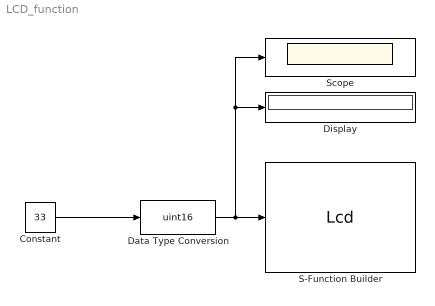
/*
 * Academic License - for use in teaching, academic research, and meeting
 * course requirements at degree granting institutions only.  Not for
 * government, commercial, or other organizational use.
 *
 * File: LCD_function.c
 *
 * Code generated for Simulink model 'LCD_function'.
 *
 * Model version                  : 1.11
 * Simulink Coder version         : 9.6 (R2021b) 14-May-2021
 * C/C++ source code generated on : Mon Jan  3 20:05:37 2022
 *
 * Target selection: ert.tlc
 * Embedded hardware selection: Atmel->AVR
 * Code generation objectives: Unspecified
 * Validation result: Not run
 */

#include "LCD_function.h"
#include "LCD_function_private.h"

/* Block signals (default storage) */
B_LCD_function_T LCD_function_B;

/* Block states (default storage) */
DW_LCD_function_T LCD_function_DW;

/* Real-time model */
static RT_MODEL_LCD_function_T LCD_function_M_;
RT_MODEL_LCD_function_T *const LCD_function_M = &LCD_function_M_;

/* Model step function */
void LCD_function_step(void)
{
  real_T tmp;

  /* DataTypeConversion: '<Root>/Data Type Conversion' incorporates:
   *  Constant: '<Root>/Constant'
   */
  tmp = floor(LCD_function_P.Constant_Value);
  if (rtIsNaN(tmp) || rtIsInf(tmp)) {
    tmp = 0.0;
  } else {
    tmp = fmod(tmp, 65536.0);
  }

  /* DataTypeConversion: '<Root>/Data Type Conversion' */
  LCD_function_B.DataTypeConversion = tmp < 0.0 ? (uint16_T)-(int16_T)(uint16_T)
    -tmp : (uint16_T)tmp;

  /* S-Function (Lcd): '<Root>/S-Function Builder' */
  Lcd_Outputs_wrapper_cgen(&LCD_function_B.DataTypeConversion,
    &LCD_function_DW.SFunctionBuilder_DSTATE);

  /* Update for S-Function (Lcd): '<Root>/S-Function Builder' */

  /* S-Function "Lcd_wrapper" Block: <Root>/S-Function Builder */
  Lcd_Update_wrapper_cgen(&LCD_function_B.DataTypeConversion,
    &LCD_function_DW.SFunctionBuilder_DSTATE);

  {                                    /* Sample time: [0.2s, 0.0s] */
  }

  /* Update absolute time for base rate */
  /* The "clockTick0" counts the number of times the code of this task has
   * been executed. The absolute time is the multiplication of "clockTick0"
   * and "Timing.stepSize0". Size of "clockTick0" ensures timer will not
   * overflow during the application lifespan selected.
   */
  LCD_function_M->Timing.taskTime0 =
    ((time_T)(++LCD_function_M->Timing.clockTick0)) *
    LCD_function_M->Timing.stepSize0;
}
